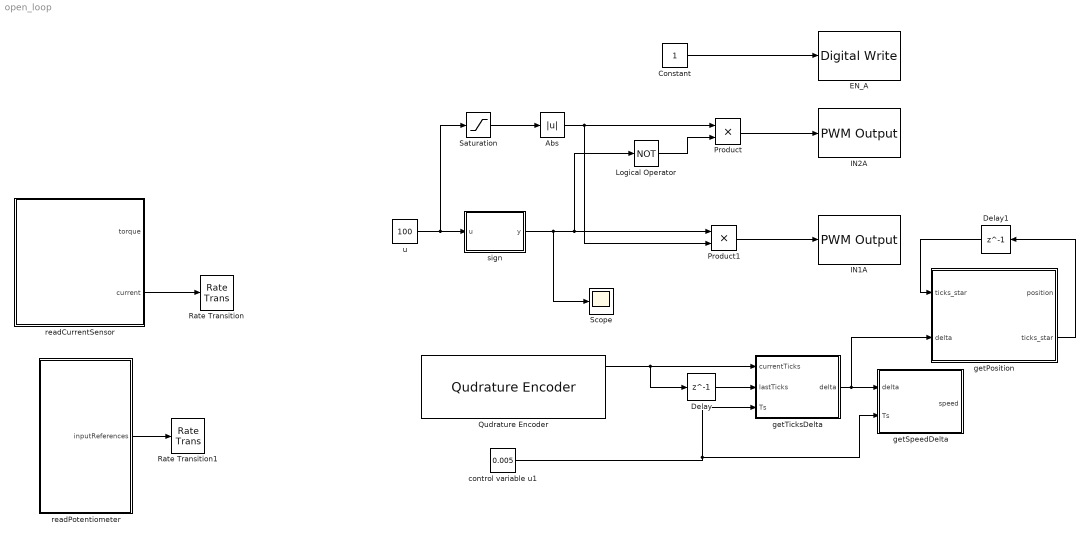
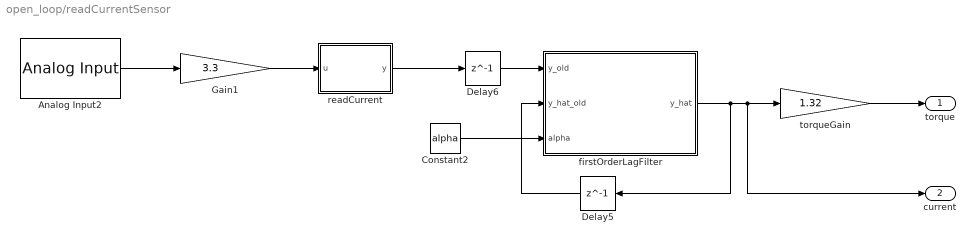
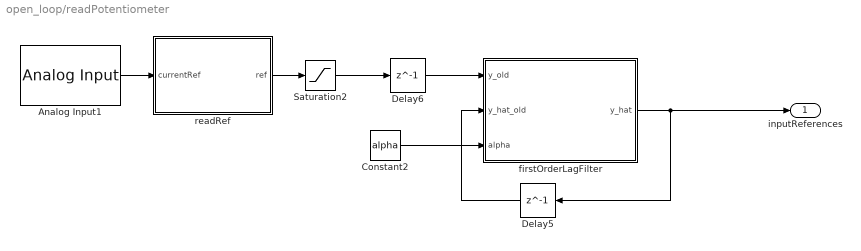
== matlab function open_loop/getTicksDelta ==
function delta = getTicksDelta(currentTicks,lastTicks, Ts)

currentTicks=double(currentTicks);
lastTicks=double(lastTicks);

if abs(currentTicks -lastTicks) <= ceil(12600*Ts)
    delta= currentTicks - lastTicks;
else
    if lastTicks > currentTicks
        delta= currentTicks + 2^16 -1 - lastTicks;
    else
        delta= currentTicks - 2^16 +1 - lastTicks;
    end
end

end

== matlab function open_loop/sign ==
function y = sign(u)
if u >0
    y=1;
else
   y=0;
end

== matlab function open_loop/getSpeedDelta ==
function speed=getSpeedDelta(delta,Ts)
speed=delta * 60/ (8400*Ts);
end

== matlab function open_loop/getPosition ==
function [position,ticks_star] = getPosition(ticks_star, delta)
    ticks_star=double(ticks_star + delta);
    completeTheta=2*pi*ticks_star/(8400);
    position=sign(completeTheta)*mod(abs(completeTheta), 2*pi)
end

== matlab function open_loop/readCurrentSensor/firstOrderLagFilter ==
function y_hat = firstOrderLagFilter(y_old, y_hat_old, alpha)
    y_hat= (alpha *y_hat_old) + ((1-alpha)* y_old)
end

== matlab function open_loop/readCurrentSensor/readCurrent ==
function y = readCurrent(u)


y=(u-2.5-0.105)/0.185

== matlab function open_loop/readPotentiometer/firstOrderLagFilter ==
function y_hat = firstOrderLagFilter(y_old, y_hat_old, alpha)
    y_hat= (alpha *y_hat_old) + ((1-alpha)* y_old)
end

== matlab function open_loop/readPotentiometer/readRef ==
function ref= getRef(currentRef) 
    
    ref = currentRef * 0.2
end

/*
 * Academic License - for use in teaching, academic research, and meeting
 * course requirements at degree granting institutions only.  Not for
 * government, commercial, or other organizational use.
 *
 * File: open_loop.c
 *
 * Code generated for Simulink model 'open_loop'.
 *
 * Model version                  : 1.66
 * Simulink Coder version         : 23.2 (R2023b) 01-Aug-2023
 * C/C++ source code generated on : Wed Jul 17 14:46:43 2024
 *
 * Target selection: ert.tlc
 * Embedded hardware selection: ARM Compatible->ARM Cortex
 * Code generation objectives: Unspecified
 * Validation result: Not run
 */

#include "open_loop.h"
#include <math.h>
#include "rtwtypes.h"
#include "rt_nonfinite.h"
#include "open_loop_private.h"

/* Block signals (default storage) */
B_open_loop_T open_loop_B;

/* Block states (default storage) */
DW_open_loop_T open_loop_DW;

/* Real-time model */
static RT_MODEL_open_loop_T open_loop_M_;
RT_MODEL_open_loop_T *const open_loop_M = &open_loop_M_;
static void rate_monotonic_scheduler(void);

/*
 * Set which subrates need to run this base step (base rate always runs).
 * This function must be called prior to calling the model step function
 * in order to remember which rates need to run this base step.  The
 * buffering of events allows for overlapping preemption.
 */
void open_loop_SetEventsForThisBaseStep(boolean_T *eventFlags)
{
  /* Task runs when its counter is zero, computed via rtmStepTask macro */
  eventFlags[1] = ((boolean_T)rtmStepTask(open_loop_M, 1));
}

/*
 *         This function updates active task flag for each subrate
 *         and rate transition flags for tasks that exchange data.
 *         The function assumes rate-monotonic multitasking scheduler.
 *         The function must be called at model base rate so that
 *         the generated code self-manages all its subrates and rate
 *         transition flags.
 */
static void rate_monotonic_scheduler(void)
{
  /* Compute which subrates run during the next base time step.  Subrates
   * are an integer multiple of the base rate counter.  Therefore, the subtask
   * counter is reset when it reaches its limit (zero means run).
   */
  (open_loop_M->Timing.TaskCounters.TID[1])++;
  if ((open_loop_M->Timing.TaskCounters.TID[1]) > 19) {/* Sample time: [0.005s, 0.0s] */
    open_loop_M->Timing.TaskCounters.TID[1] = 0;
  }
}

/* Model step function for TID0 */
void open_loop_step0(void)             /* Sample time: [0.00025s, 0.0s] */
{
  real_T rtb_Abs;

  {                                    /* Sample time: [0.00025s, 0.0s] */
    rate_monotonic_scheduler();
  }

  /* Constant: '<Root>/u' */
  open_loop_B.u = open_loop_P.u_Value;

  /* MATLAB Function: '<Root>/sign' */
  open_loop_B.y = (open_loop_B.u > 0.0);

  /* Saturate: '<Root>/Saturation' */
  if (open_loop_B.u > open_loop_P.Saturation_UpperSat) {
    rtb_Abs = open_loop_P.Saturation_UpperSat;
  } else if (open_loop_B.u < open_loop_P.Saturation_LowerSat) {
    rtb_Abs = open_loop_P.Saturation_LowerSat;
  } else {
    rtb_Abs = open_loop_B.u;
  }

  /* Abs: '<Root>/Abs' incorporates:
   *  Saturate: '<Root>/Saturation'
   */
  rtb_Abs = fabs(rtb_Abs);

  /* MATLABSystem: '<Root>/IN2A' incorporates:
   *  Logic: '<Root>/Logical Operator'
   *  Product: '<Root>/Product'
   */
  MW_PWM_SetDutyCycle(open_loop_DW.obj_g.MW_PWM_HANDLE, rtb_Abs * (real_T)
                      !(open_loop_B.y != 0.0));

  /* MATLABSystem: '<Root>/IN1A' incorporates:
   *  Product: '<Root>/Product1'
   */
  MW_PWM_SetDutyCycle(open_loop_DW.obj_j.MW_PWM_HANDLE, open_loop_B.y * rtb_Abs);

  /* MATLABSystem: '<Root>/EN_A' incorporates:
   *  Constant: '<Root>/Constant'
   */
  MW_digitalIO_write(open_loop_DW.obj_p.MW_DIGITALIO_HANDLE,
                     open_loop_P.Constant_Value != 0.0);

  /* MATLAB Function: '<S4>/firstOrderLagFilter' incorporates:
   *  Constant: '<S4>/Constant2'
   *  Delay: '<S4>/Delay5'
   *  Delay: '<S4>/Delay6'
   */
  open_loop_B.y_hat_g = (1.0 - open_loop_P.readCurrentSensor_alpha) *
    open_loop_DW.Delay6_DSTATE + open_loop_P.readCurrentSensor_alpha *
    open_loop_DW.Delay5_DSTATE;

  /* RateTransition: '<Root>/Rate Transition' */
  open_loop_B.RateTransition = open_loop_B.y_hat_g;

  /* Gain: '<S4>/torqueGain' */
  open_loop_B.torqueGain = open_loop_P.torqueGain_Gain * open_loop_B.y_hat_g;

  /* MATLABSystem: '<S4>/Analog Input2' */
  if (open_loop_DW.obj_b.SampleTime != open_loop_P.AnalogInput2_SampleTime) {
    open_loop_DW.obj_b.SampleTime = open_loop_P.AnalogInput2_SampleTime;
  }

  MW_AnalogIn_Start(open_loop_DW.obj_b.MW_ANALOGIN_HANDLE);

  /* MATLABSystem: '<S4>/Analog Input2' */
  MW_AnalogInSingle_ReadResult(open_loop_DW.obj_b.MW_ANALOGIN_HANDLE,
    &open_loop_B.AnalogInput2, 7);

  /* Gain: '<S4>/Gain1' */
  open_loop_B.Gain1 = open_loop_P.Gain1_Gain * open_loop_B.AnalogInput2;

  /* MATLAB Function: '<S4>/readCurrent' */
  open_loop_B.y_h = ((open_loop_B.Gain1 - 2.5) - 0.105) / 0.185;

  /* MATLAB Function: '<S5>/firstOrderLagFilter' incorporates:
   *  Constant: '<S5>/Constant2'
   *  Delay: '<S5>/Delay5'
   *  Delay: '<S5>/Delay6'
   */
  open_loop_DW.Delay5_DSTATE_i = (1.0 - open_loop_P.readPotentiometer_alpha) *
    open_loop_DW.Delay6_DSTATE_d + open_loop_P.readPotentiometer_alpha *
    open_loop_DW.Delay5_DSTATE_i;

  /* RateTransition: '<Root>/Rate Transition1' */
  open_loop_B.RateTransition1 = open_loop_DW.Delay5_DSTATE_i;

  /* MATLABSystem: '<S5>/Analog Input1' */
  if (open_loop_DW.obj_l.SampleTime != open_loop_P.AnalogInput1_SampleTime) {
    open_loop_DW.obj_l.SampleTime = open_loop_P.AnalogInput1_SampleTime;
  }

  MW_AnalogIn_Start(open_loop_DW.obj_l.MW_ANALOGIN_HANDLE);

  /* MATLABSystem: '<S5>/Analog Input1' */
  MW_AnalogInSingle_ReadResult(open_loop_DW.obj_l.MW_ANALOGIN_HANDLE,
    &open_loop_B.AnalogInput1, 7);

  /* MATLAB Function: '<S5>/readRef' */
  open_loop_B.ref = open_loop_B.AnalogInput1 * 0.2;

  /* Saturate: '<S5>/Saturation2' */
  if (open_loop_B.ref > open_loop_P.Saturation2_UpperSat) {
    open_loop_DW.Delay6_DSTATE_d = open_loop_P.Saturation2_UpperSat;
  } else if (open_loop_B.ref < open_loop_P.Saturation2_LowerSat) {
    open_loop_DW.Delay6_DSTATE_d = open_loop_P.Saturation2_LowerSat;
  } else {
    open_loop_DW.Delay6_DSTATE_d = open_loop_B.ref;
  }

  /* End of Saturate: '<S5>/Saturation2' */

  /* Update for Delay: '<S4>/Delay6' */
  open_loop_DW.Delay6_DSTATE = open_loop_B.y_h;

  /* Update for Delay: '<S4>/Delay5' */
  open_loop_DW.Delay5_DSTATE = open_loop_B.y_hat_g;

  /* Update absolute time */
  /* The "clockTick0" counts the number of times the code of this task has
   * been executed. The absolute time is the multiplication of "clockTick0"
   * and "Timing.stepSize0". Size of "clockTick0" ensures timer will not
   * overflow during the application lifespan selected.
   */
  open_loop_M->Timing.taskTime0 =
    ((time_T)(++open_loop_M->Timing.clockTick0)) * open_loop_M->Timing.stepSize0;
}

/* Model step function for TID1 */
void open_loop_step1(void)             /* Sample time: [0.005s, 0.0s] */
{
  real_T completeTheta;
  real_T q;
  real_T r;
  int32_T delta;
  uint16_T b_varargout_2;
  boolean_T rEQ0;

  /* MATLABSystem: '<Root>/Qudrature Encoder' */
  if (open_loop_DW.obj.SampleTime != open_loop_P.QudratureEncoder_SampleTime) {
    open_loop_DW.obj.SampleTime = open_loop_P.QudratureEncoder_SampleTime;
  }

  /* MATLABSystem: '<Root>/Qudrature Encoder' */
  /* 		%% Define output properties */
  /*  Call C-function implementing device output */
  open_loop_B.QudratureEncoder_o1 = getEncoderCount();

  /* MATLABSystem: '<Root>/Qudrature Encoder' */
  getIndexCount(&b_varargout_2);

  /* MATLAB Function: '<Root>/getTicksDelta' incorporates:
   *  Constant: '<Root>/control variable u1'
   *  Delay: '<Root>/Delay'
   */
  delta = open_loop_B.QudratureEncoder_o1 - open_loop_DW.Delay_DSTATE;
  if (!(fabs((real_T)delta) <= ceil(12600.0 *
        open_loop_P.controlvariableu1_Value))) {
    if (open_loop_DW.Delay_DSTATE > open_loop_B.QudratureEncoder_o1) {
      delta += 65535;
    } else {
      delta -= 65535;
    }
  }

  /* End of MATLAB Function: '<Root>/getTicksDelta' */

  /* MATLAB Function: '<Root>/getSpeedDelta' incorporates:
   *  Constant: '<Root>/control variable u1'
   */
  open_loop_B.speed = (real_T)delta * 60.0 / (8400.0 *
    open_loop_P.controlvariableu1_Value);

  /* MATLAB Function: '<Root>/getPosition' incorporates:
   *  Delay: '<Root>/Delay1'
   */
  open_loop_DW.Delay1_DSTATE += (real_T)delta;
  completeTheta = 6.2831853071795862 * open_loop_DW.Delay1_DSTATE / 8400.0;
  q = fabs(completeTheta);
  if (rtIsNaN(q)) {
    r = (rtNaN);
  } else if (rtIsInf(q)) {
    r = (rtNaN);
  } else if (q == 0.0) {
    r = 0.0;
  } else {
    r = fmod(q, 6.2831853071795862);
    rEQ0 = (r == 0.0);
    if (!rEQ0) {
      q /= 6.2831853071795862;
      rEQ0 = !(fabs(q - floor(q + 0.5)) > 2.2204460492503131E-16 * q);
    }

    if (rEQ0) {
      r = 0.0;
    }
  }

  if (rtIsNaN(completeTheta)) {
    completeTheta = (rtNaN);
  } else if (completeTheta < 0.0) {
    completeTheta = -1.0;
  } else {
    completeTheta = (completeTheta > 0.0);
  }

  open_loop_B.position = completeTheta * r;

  /* End of MATLAB Function: '<Root>/getPosition' */
  /* Update for Delay: '<Root>/Delay' */
  open_loop_DW.Delay_DSTATE = open_loop_B.QudratureEncoder_o1;

  /* Update absolute time */
  /* The "clockTick1" counts the number of times the code of this task has
   * been executed. The resolution of this integer timer is 0.005, which is the step size
   * of the task. Size of "clockTick1" ensures timer will not overflow during the
   * application lifespan selected.
   */
  open_loop_M->Timing.clockTick1++;
}
